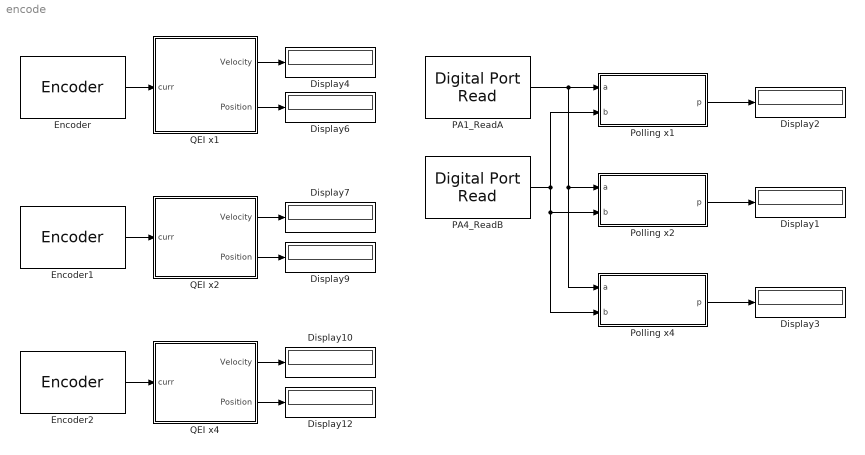
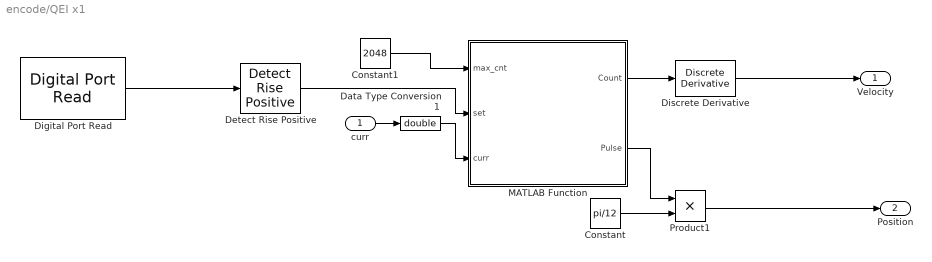
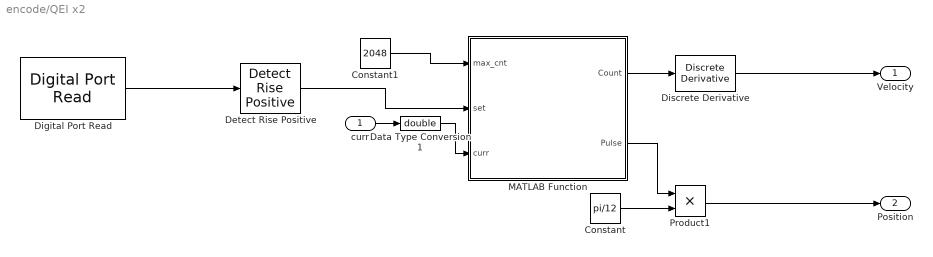
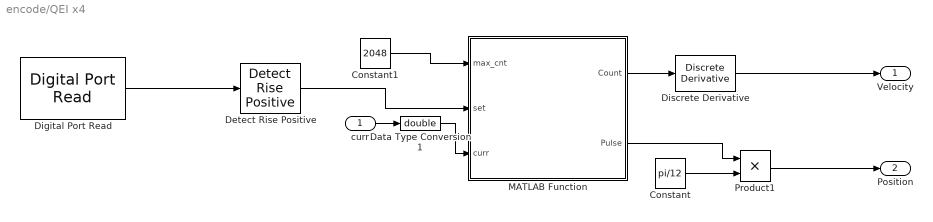
== matlab function encode/Polling x2 ==
function p = fcn(a,b)
    persistent pos;
    persistent trig;
    if isempty(trig)
        trig = 1;
        pos = 0;
    end
    if a-b == -1 && trig
        pos = pos + 1;
        trig = 2;
    elseif a-b == 1 && trig
        pos = pos -1;
        trig = 2;
    end

    if a == 0 && b == 0 
        trig = 0;
    end

    if a-b == 1 && trig == 0
        pos = pos + 1;
        trig = -1;
    elseif a-b == -1 && trig == 0
        pos = pos -1;
        trig = 1;
    end

    if a == 1 && b == 1
        trig = 1;
    end
    p = pos;
end

== matlab function encode/Polling x1 ==
function p = fcn(a,b)
    persistent pos;
    persistent trig;
    if isempty(trig)
        trig = 1;
        pos = 0;
    end
    if a-b == -1 && trig
        pos = pos + 1;
        trig = 0;
    elseif a-b == 1 && trig
        pos = pos -1;
        trig = 0;
    end

    if a == 1 && b == 1
        trig = 1;
    end
    p = pos;
end

== matlab function encode/Polling x4 ==
function p = fcn(a,b)
    persistent pos;
    persistent trigA;
    persistent trigB;
    if isempty(trigA)
        trigA = 1;
        trigB = 1;
        pos = 0;
    end
    if a-b == -1 && trigA
        pos = pos + 1;
        trigA = 2;
    elseif a-b == 1 && trigA
        pos = pos -1;
        trigA = 2;
    end


    if a-b == -1 && trigA == 0
        pos = pos + 1;
        trigA = -1;
    elseif a-b == 1 && trigA == 0
        pos = pos -1;
        trigA = -1;
    end


    if b-a == 1 && trigB
        pos = pos + 1;
        trigB = 2;
    elseif b-a == -1 && trigB
        pos = pos - 1;
        trigB = 2;
    end

    if b-a == 1 && trigB == 0
        pos = pos + 1;
        trigB = -1;
    elseif b-a == -1 && trigB == 0
        pos = pos - 1;
        trigB = -1;
    end

    if a == 0 && b == 0
        trigA = 0;
        trigB = 0;
    end

    if a == 1 && b == 1
        trigA = 1;
        trigB = 1;
    end
    p = pos;
end

== matlab function encode/QEI x1/MATLAB Function ==
function [Count,Pulse] = fcn(max_cnt,set,curr)
    persistent prev;
    persistent homing;
    persistent pos;

    if isempty(prev)
        prev = curr;
        homing = 0;
        pos = 0;
    end

    delta = curr - prev;

    if delta <= -1*(max_cnt/2)
        delta = delta + max_cnt + 1;
    elseif delta >= max_cnt/2
        delta = delta -max_cnt - 1;
    end

    if set
        homing = pos;
    end

    pos = pos + delta;
    Count = pos - homing;
    prev = curr;

    Pulse = Count;

end

== matlab function encode/QEI x2/MATLAB Function ==
function [Count,Pulse] = fcn(max_cnt,set,curr)
    persistent prev;
    persistent homing;
    persistent pos;

    if isempty(prev)
        prev = curr;
        homing = 0;
        pos = 0;
    end

    delta = curr - prev;

    if delta <= -1*(max_cnt/2)
        delta = delta + max_cnt + 1;
    elseif delta >= max_cnt/2
        delta = delta -max_cnt - 1;
    end

    if set
        homing = pos;
    end

    pos = pos + delta;
    Count = pos - homing;
    prev = curr;

    Pulse = Count;

end

== matlab function encode/QEI x4/MATLAB Function ==
function [Count,Pulse] = fcn(max_cnt,set,curr)
    persistent prev;
    persistent homing;
    persistent pos;

    if isempty(prev)
        prev = curr;
        homing = 0;
        pos = 0;
    end

    delta = curr - prev;

    if delta <= -1*(max_cnt/2)
        delta = delta + max_cnt + 1;
    elseif delta >= max_cnt/2
        delta = delta -max_cnt - 1;
    end

    if set
        homing = pos;
    end

    pos = pos + delta;
    Count = pos - homing;
    prev = curr;

    Pulse = Count;

end

/*
 * Academic License - for use in teaching, academic research, and meeting
 * course requirements at degree granting institutions only.  Not for
 * government, commercial, or other organizational use.
 *
 * File: encode.c
 *
 * Code generated for Simulink model 'encode'.
 *
 * Model version                  : 1.2
 * Simulink Coder version         : 24.2 (R2024b) 21-Jun-2024
 * C/C++ source code generated on : Thu Oct 31 08:04:09 2024
 *
 * Target selection: ert.tlc
 * Embedded hardware selection: ARM Compatible->ARM Cortex-M
 * Code generation objectives: Unspecified
 * Validation result: Not run
 */

#include "encode.h"
#include "rtwtypes.h"
#include "encode_types.h"
#include "encode_private.h"
#include "stm_timer_ll.h"

/* Named constants for MATLAB Function: '<S6>/MATLAB Function' */
#define encode_CALL_EVENT              (-1)

/* Block signals (default storage) */
B_encode_T encode_B;

/* Block states (default storage) */
DW_encode_T encode_DW;

/* Real-time model */
static RT_MODEL_encode_T encode_M_;
RT_MODEL_encode_T *const encode_M = &encode_M_;

/* Forward declaration for local functions */
static void encode_SystemCore_setup_hf(stm32cube_blocks_EncoderBlock_T *obj);
static void encode_SystemCore_setup(stm32cube_blocks_EncoderBlock_T *obj);
static void encode_SystemCore_setup_h(stm32cube_blocks_EncoderBlock_T *obj);

/* System initialize for atomic system: */
void encode_DigitalPortRead_Init(DW_DigitalPortRead_encode_T *localDW)
{
  /* Start for MATLABSystem: '<S19>/Digital Port Read' */
  localDW->objisempty = true;
  localDW->obj.isInitialized = 1;
}

/* Output and update for atomic system: */
void encode_DigitalPortRead(B_DigitalPortRead_encode_T *localB)
{
  uint32_T pinReadLoc;

  /* MATLABSystem: '<S19>/Digital Port Read' */
  pinReadLoc = LL_GPIO_ReadInputPort(GPIOC);

  /* MATLABSystem: '<S19>/Digital Port Read' */
  localB->DigitalPortRead = ((pinReadLoc & 8192U) != 0U);
}

/*
 * System initialize for atomic system:
 *    '<S6>/MATLAB Function'
 *    '<S7>/MATLAB Function'
 *    '<S8>/MATLAB Function'
 */
void encode_MATLABFunction_Init(DW_MATLABFunction_encode_T *localDW)
{
  localDW->sfEvent = encode_CALL_EVENT;
}

/*
 * Output and update for atomic system:
 *    '<S6>/MATLAB Function'
 *    '<S7>/MATLAB Function'
 *    '<S8>/MATLAB Function'
 */
void encode_MATLABFunction(real_T rtu_max_cnt, boolean_T rtu_set, real_T
  rtu_curr, real_T *rty_Count, real_T *rty_Pulse, DW_MATLABFunction_encode_T
  *localDW)
{
  real_T delta;
  localDW->sfEvent = encode_CALL_EVENT;
  if (!localDW->prev_not_empty) {
    localDW->prev = rtu_curr;
    localDW->prev_not_empty = true;
    localDW->homing_not_empty = true;
    localDW->pos_not_empty = true;
  }

  delta = rtu_curr - localDW->prev;
  if (delta <= -(rtu_max_cnt / 2.0)) {
    delta = (delta + rtu_max_cnt) + 1.0;
  } else if (delta >= rtu_max_cnt / 2.0) {
    delta = (delta - rtu_max_cnt) - 1.0;
  }

  if (rtu_set) {
    localDW->homing = localDW->pos;
  }

  localDW->pos += delta;
  delta = localDW->pos - localDW->homing;
  localDW->prev = rtu_curr;
  *rty_Pulse = delta;
  *rty_Count = delta;
}

static void encode_SystemCore_setup_hf(stm32cube_blocks_EncoderBlock_T *obj)
{
  uint8_T ChannelInfo;
  TIM_Type_T b;
  boolean_T isSlaveModeTriggerEnabled;

  /* Start for MATLABSystem: '<Root>/Encoder2' */
  obj->isInitialized = 1;
  b.PeripheralPtr = TIM3;
  b.isCenterAlignedMode = false;

  /* Start for MATLABSystem: '<Root>/Encoder2' */
  b.repetitionCounter = 0U;
  obj->TimerHandle = Timer_Handle_Init(&b);
  enableTimerInterrupts(obj->TimerHandle, 0);
  ChannelInfo = ENABLE_CH;

  /* Start for MATLABSystem: '<Root>/Encoder2' */
  enableTimerChannel1(obj->TimerHandle, ChannelInfo);
  enableTimerChannel2(obj->TimerHandle, ChannelInfo);
  isSlaveModeTriggerEnabled = isSlaveTriggerModeEnabled(obj->TimerHandle);
  if (!isSlaveModeTriggerEnabled) {
    /* Start for MATLABSystem: '<Root>/Encoder2' */
    enableCounter(obj->TimerHandle, false);
  }

  obj->isSetupComplete = true;
}

static void encode_SystemCore_setup(stm32cube_blocks_EncoderBlock_T *obj)
{
  uint8_T ChannelInfo;
  TIM_Type_T b;
  boolean_T isSlaveModeTriggerEnabled;

  /* Start for MATLABSystem: '<Root>/Encoder' */
  obj->isInitialized = 1;
  b.PeripheralPtr = TIM1;
  b.isCenterAlignedMode = false;

  /* Start for MATLABSystem: '<Root>/Encoder' */
  b.repetitionCounter = 0U;
  obj->TimerHandle = Timer_Handle_Init(&b);
  enableTimerInterrupts(obj->TimerHandle, 0);
  ChannelInfo = ENABLE_CH;

  /* Start for MATLABSystem: '<Root>/Encoder' */
  enableTimerChannel1(obj->TimerHandle, ChannelInfo);
  enableTimerChannel2(obj->TimerHandle, ChannelInfo);
  isSlaveModeTriggerEnabled = isSlaveTriggerModeEnabled(obj->TimerHandle);
  if (!isSlaveModeTriggerEnabled) {
    /* Start for MATLABSystem: '<Root>/Encoder' */
    enableCounter(obj->TimerHandle, false);
  }

  obj->isSetupComplete = true;
}

static void encode_SystemCore_setup_h(stm32cube_blocks_EncoderBlock_T *obj)
{
  uint8_T ChannelInfo;
  TIM_Type_T b;
  boolean_T isSlaveModeTriggerEnabled;

  /* Start for MATLABSystem: '<Root>/Encoder1' */
  obj->isInitialized = 1;
  b.PeripheralPtr = TIM4;
  b.isCenterAlignedMode = false;

  /* Start for MATLABSystem: '<Root>/Encoder1' */
  b.repetitionCounter = 0U;
  obj->TimerHandle = Timer_Handle_Init(&b);
  enableTimerInterrupts(obj->TimerHandle, 0);
  ChannelInfo = ENABLE_CH;

  /* Start for MATLABSystem: '<Root>/Encoder1' */
  enableTimerChannel1(obj->TimerHandle, ChannelInfo);
  enableTimerChannel2(obj->TimerHandle, ChannelInfo);
  isSlaveModeTriggerEnabled = isSlaveTriggerModeEnabled(obj->TimerHandle);
  if (!isSlaveModeTriggerEnabled) {
    /* Start for MATLABSystem: '<Root>/Encoder1' */
    enableCounter(obj->TimerHandle, false);
  }

  obj->isSetupComplete = true;
}

/* Model step function */
void encode_step(void)
{
  real_T Count;
  real_T Pulse;
  real_T Pulse_a;
  real_T Pulse_d;
  int32_T tmp;
  uint32_T pinReadLoc;
  boolean_T tmp_0;
  boolean_T tmp_1;

  /* MATLABSystem: '<S10>/Digital Port Read' */
  pinReadLoc = LL_GPIO_ReadInputPort(GPIOA);

  /* MATLABSystem: '<S10>/Digital Port Read' */
  encode_B.DigitalPortRead_g = ((pinReadLoc & 2U) != 0U);

  /* MATLABSystem: '<S12>/Digital Port Read' */
  pinReadLoc = LL_GPIO_ReadInputPort(GPIOA);

  /* MATLABSystem: '<S12>/Digital Port Read' */
  encode_B.DigitalPortRead = ((pinReadLoc & 16U) != 0U);

  /* MATLAB Function: '<Root>/Polling x2' incorporates:
   *  MATLAB Function: '<Root>/Polling x1'
   *  MATLAB Function: '<Root>/Polling x4'
   */
  tmp = encode_B.DigitalPortRead_g - encode_B.DigitalPortRead;
  if ((tmp == -1) && (encode_DW.trig != 0.0)) {
    encode_DW.pos_o++;
    encode_DW.trig = 2.0;
  } else if ((tmp == 1) && (encode_DW.trig != 0.0)) {
    encode_DW.pos_o--;
    encode_DW.trig = 2.0;
  }

  tmp_0 = !encode_B.DigitalPortRead_g;
  tmp_1 = !encode_B.DigitalPortRead;
  if (tmp_0 && tmp_1) {
    encode_DW.trig = 0.0;
  }

  if ((tmp == 1) && (encode_DW.trig == 0.0)) {
    encode_DW.pos_o++;
    encode_DW.trig = -1.0;
  } else if ((tmp == -1) && (encode_DW.trig == 0.0)) {
    encode_DW.pos_o--;
    encode_DW.trig = 1.0;
  }

  if (encode_B.DigitalPortRead_g && encode_B.DigitalPortRead) {
    encode_DW.trig = 1.0;
  }

  encode_B.p_l = encode_DW.pos_o;

  /* End of MATLAB Function: '<Root>/Polling x2' */
  /* MATLAB Function: '<Root>/Polling x1' */
  if ((tmp == -1) && (encode_DW.trig_j != 0.0)) {
    encode_DW.pos_k++;
    encode_DW.trig_j = 0.0;
  } else if ((tmp == 1) && (encode_DW.trig_j != 0.0)) {
    encode_DW.pos_k--;
    encode_DW.trig_j = 0.0;
  }

  if (encode_B.DigitalPortRead_g && encode_B.DigitalPortRead) {
    encode_DW.trig_j = 1.0;
  }

  encode_B.p_e = encode_DW.pos_k;

  /* MATLAB Function: '<Root>/Polling x4' */
  if ((tmp == -1) && (encode_DW.trigA != 0.0)) {
    encode_DW.pos++;
    encode_DW.trigA = 2.0;
  } else if ((tmp == 1) && (encode_DW.trigA != 0.0)) {
    encode_DW.pos--;
    encode_DW.trigA = 2.0;
  }

  if ((tmp == -1) && (encode_DW.trigA == 0.0)) {
    encode_DW.pos++;
    encode_DW.trigA = -1.0;
  } else if ((tmp == 1) && (encode_DW.trigA == 0.0)) {
    encode_DW.pos--;
    encode_DW.trigA = -1.0;
  }

  tmp = encode_B.DigitalPortRead - encode_B.DigitalPortRead_g;
  if ((tmp == 1) && (encode_DW.trigB != 0.0)) {
    encode_DW.pos++;
    encode_DW.trigB = 2.0;
  } else if ((tmp == -1) && (encode_DW.trigB != 0.0)) {
    encode_DW.pos--;
    encode_DW.trigB = 2.0;
  }

  if ((tmp == 1) && (encode_DW.trigB == 0.0)) {
    encode_DW.pos++;
    encode_DW.trigB = -1.0;
  } else if ((tmp == -1) && (encode_DW.trigB == 0.0)) {
    encode_DW.pos--;
    encode_DW.trigB = -1.0;
  }

  if (tmp_0 && tmp_1) {
    encode_DW.trigA = 0.0;
    encode_DW.trigB = 0.0;
  }

  if (encode_B.DigitalPortRead_g && encode_B.DigitalPortRead) {
    encode_DW.trigA = 1.0;
    encode_DW.trigB = 1.0;
  }

  encode_B.p = encode_DW.pos;
  encode_DigitalPortRead(&encode_B.DigitalPortRead_k);

  /* MATLABSystem: '<Root>/Encoder2' */
  encode_B.Encoder2 = getTimerCounterValueForG4(encode_DW.obj.TimerHandle, false,
    NULL);

  /* MATLAB Function: '<S8>/MATLAB Function' incorporates:
   *  Constant: '<S8>/Constant1'
   *  DataTypeConversion: '<S8>/Data Type Conversion1'
   *  RelationalOperator: '<S27>/FixPt Relational Operator'
   *  RelationalOperator: '<S31>/Compare'
   *  UnitDelay: '<S27>/Delay Input1'
   *
   * Block description for '<S27>/Delay Input1':
   *
   *  Store in Global RAM
   */
  encode_MATLABFunction(2048.0, ((int32_T)
    encode_B.DigitalPortRead_k.DigitalPortRead > (int32_T)
    encode_DW.DelayInput1_DSTATE), (real_T)encode_B.Encoder2, &Count, &Pulse,
                        &encode_DW.sf_MATLABFunction_o);

  /* Product: '<S8>/Product1' incorporates:
   *  Constant: '<S8>/Constant'
   */
  encode_B.Product1 = Pulse * 0.26179938779914941;

  /* SampleTimeMath: '<S29>/TSamp'
   *
   * About '<S29>/TSamp':
   *  y = u * K where K = 1 / ( w * Ts )
   *   */
  Count *= 100.0;

  /* Sum: '<S29>/Diff' incorporates:
   *  UnitDelay: '<S29>/UD'
   *
   * Block description for '<S29>/Diff':
   *
   *  Add in CPU
   *
   * Block description for '<S29>/UD':
   *
   *  Store in Global RAM
   */
  encode_B.Diff = Count - encode_DW.UD_DSTATE;
  encode_DigitalPortRead(&encode_B.DigitalPortRead_f);

  /* MATLABSystem: '<Root>/Encoder' */
  encode_B.Encoder = getTimerCounterValueForG4(encode_DW.obj_p.TimerHandle,
    false, NULL);

  /* MATLAB Function: '<S6>/MATLAB Function' incorporates:
   *  Constant: '<S6>/Constant1'
   *  DataTypeConversion: '<S6>/Data Type Conversion1'
   *  RelationalOperator: '<S13>/FixPt Relational Operator'
   *  RelationalOperator: '<S17>/Compare'
   *  UnitDelay: '<S13>/Delay Input1'
   *
   * Block description for '<S13>/Delay Input1':
   *
   *  Store in Global RAM
   */
  encode_MATLABFunction(2048.0, ((int32_T)
    encode_B.DigitalPortRead_f.DigitalPortRead > (int32_T)
    encode_DW.DelayInput1_DSTATE_b), (real_T)encode_B.Encoder, &Pulse, &Pulse_a,
                        &encode_DW.sf_MATLABFunction);

  /* Product: '<S6>/Product1' incorporates:
   *  Constant: '<S6>/Constant'
   */
  encode_B.Product1_n = Pulse_a * 0.26179938779914941;

  /* SampleTimeMath: '<S15>/TSamp'
   *
   * About '<S15>/TSamp':
   *  y = u * K where K = 1 / ( w * Ts )
   *   */
  Pulse *= 100.0;

  /* Sum: '<S15>/Diff' incorporates:
   *  UnitDelay: '<S15>/UD'
   *
   * Block description for '<S15>/Diff':
   *
   *  Add in CPU
   *
   * Block description for '<S15>/UD':
   *
   *  Store in Global RAM
   */
  encode_B.Diff_m = Pulse - encode_DW.UD_DSTATE_e;
  encode_DigitalPortRead(&encode_B.DigitalPortRead_l);

  /* MATLABSystem: '<Root>/Encoder1' */
  encode_B.Encoder1 = getTimerCounterValueForG4(encode_DW.obj_g.TimerHandle,
    false, NULL);

  /* MATLAB Function: '<S7>/MATLAB Function' incorporates:
   *  Constant: '<S7>/Constant1'
   *  DataTypeConversion: '<S7>/Data Type Conversion1'
   *  RelationalOperator: '<S20>/FixPt Relational Operator'
   *  RelationalOperator: '<S24>/Compare'
   *  UnitDelay: '<S20>/Delay Input1'
   *
   * Block description for '<S20>/Delay Input1':
   *
   *  Store in Global RAM
   */
  encode_MATLABFunction(2048.0, ((int32_T)
    encode_B.DigitalPortRead_l.DigitalPortRead > (int32_T)
    encode_DW.DelayInput1_DSTATE_l), (real_T)encode_B.Encoder1, &Pulse_a,
                        &Pulse_d, &encode_DW.sf_MATLABFunction_d);

  /* Product: '<S7>/Product1' incorporates:
   *  Constant: '<S7>/Constant'
   */
  encode_B.Product1_e = Pulse_d * 0.26179938779914941;

  /* SampleTimeMath: '<S22>/TSamp'
   *
   * About '<S22>/TSamp':
   *  y = u * K where K = 1 / ( w * Ts )
   *   */
  Pulse_a *= 100.0;

  /* Sum: '<S22>/Diff' incorporates:
   *  UnitDelay: '<S22>/UD'
   *
   * Block description for '<S22>/Diff':
   *
   *  Add in CPU
   *
   * Block description for '<S22>/UD':
   *
   *  Store in Global RAM
   */
  encode_B.Diff_i = Pulse_a - encode_DW.UD_DSTATE_i;

  /* Update for UnitDelay: '<S27>/Delay Input1' incorporates:
   *  RelationalOperator: '<S31>/Compare'
   *
   * Block description for '<S27>/Delay Input1':
   *
   *  Store in Global RAM
   */
  encode_DW.DelayInput1_DSTATE = encode_B.DigitalPortRead_k.DigitalPortRead;

  /* Update for UnitDelay: '<S29>/UD'
   *
   * Block description for '<S29>/UD':
   *
   *  Store in Global RAM
   */
  encode_DW.UD_DSTATE = Count;

  /* Update for UnitDelay: '<S13>/Delay Input1' incorporates:
   *  RelationalOperator: '<S17>/Compare'
   *
   * Block description for '<S13>/Delay Input1':
   *
   *  Store in Global RAM
   */
  encode_DW.DelayInput1_DSTATE_b = encode_B.DigitalPortRead_f.DigitalPortRead;

  /* Update for UnitDelay: '<S15>/UD'
   *
   * Block description for '<S15>/UD':
   *
   *  Store in Global RAM
   */
  encode_DW.UD_DSTATE_e = Pulse;

  /* Update for UnitDelay: '<S20>/Delay Input1' incorporates:
   *  RelationalOperator: '<S24>/Compare'
   *
   * Block description for '<S20>/Delay Input1':
   *
   *  Store in Global RAM
   */
  encode_DW.DelayInput1_DSTATE_l = encode_B.DigitalPortRead_l.DigitalPortRead;

  /* Update for UnitDelay: '<S22>/UD'
   *
   * Block description for '<S22>/UD':
   *
   *  Store in Global RAM
   */
  encode_DW.UD_DSTATE_i = Pulse_a;

  /* Update absolute time for base rate */
  /* The "clockTick0" counts the number of times the code of this task has
   * been executed. The absolute time is the multiplication of "clockTick0"
   * and "Timing.stepSize0". Size of "clockTick0" ensures timer will not
   * overflow during the application lifespan selected.
   */
  encode_M->Timing.taskTime0 =
    ((time_T)(++encode_M->Timing.clockTick0)) * encode_M->Timing.stepSize0;
}
